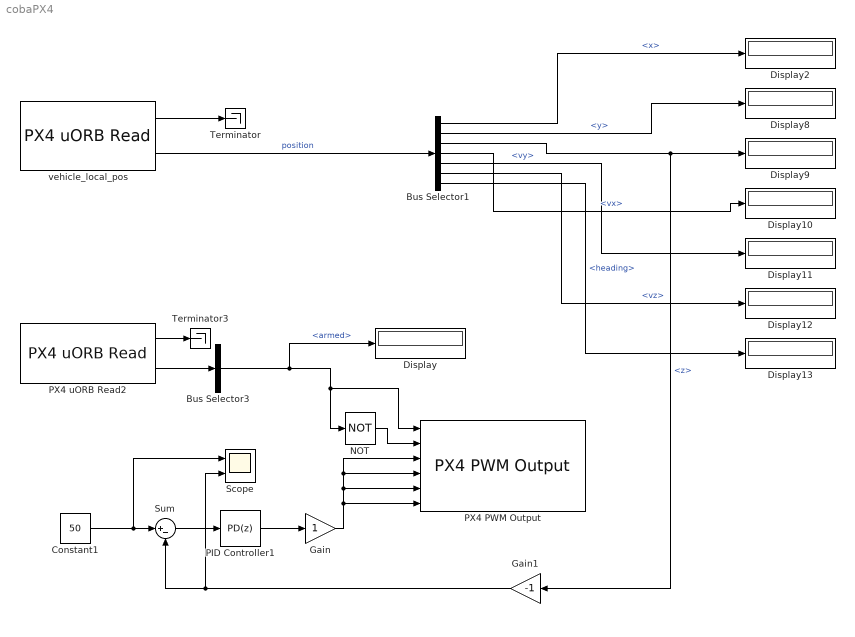
//
// Academic License - for use in teaching, academic research, and meeting
// course requirements at degree granting institutions only.  Not for
// government, commercial, or other organizational use.
//
// File: cobaPX4.cpp
//
// Code generated for Simulink model 'cobaPX4'.
//
// Model version                  : 1.16
// Simulink Coder version         : 9.9 (R2023a) 19-Nov-2022
// C/C++ source code generated on : Fri Mar  1 16:46:32 2024
//
// Target selection: ert.tlc
// Embedded hardware selection: ARM Compatible->ARM Cortex
// Code generation objectives: Unspecified
// Validation result: Not run
//
#include "cobaPX4.h"
#include "cobaPX4_types.h"
#include "rtwtypes.h"
#include <math.h>

extern "C"
{

#include "rt_nonfinite.h"

}

#include <uORB/topics/actuator_armed.h>
#include "cobaPX4_private.h"

// Block signals (default storage)
B_cobaPX4_T cobaPX4_B;

// Block states (default storage)
DW_cobaPX4_T cobaPX4_DW;

// Real-time model
RT_MODEL_cobaPX4_T cobaPX4_M_ = RT_MODEL_cobaPX4_T();
RT_MODEL_cobaPX4_T *const cobaPX4_M = &cobaPX4_M_;

// Forward declaration for local functions
static void cobaPX4_SystemCore_setup(px4_internal_block_PWM_cobaPX_T *obj,
  boolean_T varargin_1, boolean_T varargin_2);
static void cobaPX4_SystemCore_setup(px4_internal_block_PWM_cobaPX_T *obj,
  boolean_T varargin_1, boolean_T varargin_2)
{
  uint16_T status;
  obj->isSetupComplete = false;
  obj->isInitialized = 1;
  obj->isMain = true;
  obj->pwmDevObj = MW_PWM_OUTPUT_MAIN_DEVICE_PATH;
  status = pwm_open(&obj->pwmDevHandler, obj->pwmDevObj,
                    &obj->actuatorAdvertiseObj, &obj->armAdvertiseObj);
  obj->errorStatus = static_cast<uint16_T>(obj->errorStatus | status);
  obj->servoCount = 0;
  status = pwm_getServoCount(&obj->pwmDevHandler, &obj->servoCount);
  obj->errorStatus = static_cast<uint16_T>(obj->errorStatus | status);
  if (varargin_1) {
    status = pwm_arm(&obj->pwmDevHandler, &obj->armAdvertiseObj);
    obj->isArmed = true;
  } else {
    status = pwm_disarm(&obj->pwmDevHandler, &obj->armAdvertiseObj);
    obj->isArmed = false;
  }

  obj->errorStatus = static_cast<uint16_T>(obj->errorStatus | status);
  status = pwm_setPWMRate(&obj->pwmDevHandler, obj->isMain);
  obj->errorStatus = static_cast<uint16_T>(obj->errorStatus | status);
  obj->channelMask = 15;
  status = pwm_setChannelMask(&obj->pwmDevHandler, obj->channelMask);
  obj->errorStatus = static_cast<uint16_T>(obj->errorStatus | status);
  status = pwm_setFailsafePWM(&obj->pwmDevHandler, obj->servoCount,
    obj->channelMask, obj->isMain);
  obj->errorStatus = static_cast<uint16_T>(obj->errorStatus | status);
  status = pwm_setDisarmedPWM(&obj->pwmDevHandler, obj->servoCount,
    obj->channelMask, obj->isMain, &obj->actuatorAdvertiseObj);
  obj->errorStatus = static_cast<uint16_T>(obj->errorStatus | status);
  if (obj->isMain) {
    status = pwm_forceFailsafe(&obj->pwmDevHandler, static_cast<int32_T>
      (varargin_2));
    obj->errorStatus = static_cast<uint16_T>(obj->errorStatus | status);
    status = pwm_forceTerminateFailsafe(&obj->pwmDevHandler, 0);
    obj->errorStatus = static_cast<uint16_T>(obj->errorStatus | status);
  }

  obj->isSetupComplete = true;
}

// Model step function
void cobaPX4_step(void)
{
  px4_Bus_actuator_armed b_varargout_2;
  real_T rtb_Filter;
  real_T rtb_FilterCoefficient;
  int32_T i;
  uint16_T pwmValue[8];
  uint16_T rtb_Gain;
  boolean_T b_varargout_1;

  // Reset subsysRan breadcrumbs
  srClearBC(cobaPX4_DW.EnabledSubsystem_SubsysRanBC_p);

  // Reset subsysRan breadcrumbs
  srClearBC(cobaPX4_DW.EnabledSubsystem_SubsysRanBC);

  // MATLABSystem: '<S2>/SourceBlock'
  b_varargout_1 = uORB_read_step(cobaPX4_DW.obj_n.orbMetadataObj,
    &cobaPX4_DW.obj_n.eventStructObj, &b_varargout_2, false, 1.0);

  // Outputs for Enabled SubSystem: '<S2>/Enabled Subsystem' incorporates:
  //   EnablePort: '<S52>/Enable'

  if (b_varargout_1) {
    // SignalConversion generated from: '<S52>/In1'
    cobaPX4_B.In1_n = b_varargout_2;
    srUpdateBC(cobaPX4_DW.EnabledSubsystem_SubsysRanBC_p);
  }

  // End of MATLABSystem: '<S2>/SourceBlock'
  // End of Outputs for SubSystem: '<S2>/Enabled Subsystem'

  // SignalConversion generated from: '<Root>/Bus Selector3'
  cobaPX4_B.armed = cobaPX4_B.In1_n.armed;

  // Constant: '<Root>/Constant1'
  cobaPX4_B.Constant1 = cobaPX4_P.Constant1_Value;

  // MATLABSystem: '<S3>/SourceBlock'
  b_varargout_1 = uORB_read_step(cobaPX4_DW.obj_d.orbMetadataObj,
    &cobaPX4_DW.obj_d.eventStructObj, &cobaPX4_B.b_varargout_2, false, 1.0);

  // Outputs for Enabled SubSystem: '<S3>/Enabled Subsystem' incorporates:
  //   EnablePort: '<S53>/Enable'

  if (b_varargout_1) {
    // SignalConversion generated from: '<S53>/In1'
    cobaPX4_B.In1 = cobaPX4_B.b_varargout_2;
    srUpdateBC(cobaPX4_DW.EnabledSubsystem_SubsysRanBC);
  }

  // End of MATLABSystem: '<S3>/SourceBlock'
  // End of Outputs for SubSystem: '<S3>/Enabled Subsystem'

  // SignalConversion generated from: '<Root>/Bus Selector1'
  cobaPX4_B.z = cobaPX4_B.In1.z;

  // Gain: '<Root>/Gain1'
  cobaPX4_B.Gain1 = cobaPX4_P.Gain1_Gain * cobaPX4_B.z;

  // Sum: '<Root>/Sum'
  rtb_Filter = cobaPX4_B.Constant1 - cobaPX4_B.Gain1;

  // Gain: '<S38>/Filter Coefficient' incorporates:
  //   DiscreteIntegrator: '<S30>/Filter'
  //   Gain: '<S29>/Derivative Gain'
  //   Sum: '<S30>/SumD'

  rtb_FilterCoefficient = (cobaPX4_P.PIDController1_D * rtb_Filter -
    cobaPX4_DW.Filter_DSTATE) * cobaPX4_P.PIDController1_N;

  // Gain: '<Root>/Gain' incorporates:
  //   Gain: '<S40>/Proportional Gain'
  //   Sum: '<S44>/Sum'

  rtb_Filter = floor((cobaPX4_P.PIDController1_P * rtb_Filter +
                      rtb_FilterCoefficient) * cobaPX4_P.Gain_Gain);
  if (rtIsNaN(rtb_Filter) || rtIsInf(rtb_Filter)) {
    rtb_Filter = 0.0;
  } else {
    rtb_Filter = fmod(rtb_Filter, 65536.0);
  }

  rtb_Gain = static_cast<uint16_T>(rtb_Filter < 0.0 ? static_cast<int32_T>(
    static_cast<uint16_T>(-static_cast<int16_T>(static_cast<uint16_T>
    (-rtb_Filter)))) : static_cast<int32_T>(static_cast<uint16_T>(rtb_Filter)));

  // End of Gain: '<Root>/Gain'

  // MATLABSystem: '<Root>/PX4 PWM Output' incorporates:
  //   Logic: '<Root>/NOT'

  for (i = 0; i < 8; i++) {
    pwmValue[i] = 0U;
  }

  pwmValue[0] = rtb_Gain;
  pwmValue[1] = rtb_Gain;
  pwmValue[2] = rtb_Gain;
  pwmValue[3] = rtb_Gain;
  if (cobaPX4_B.armed) {
    if (!cobaPX4_DW.obj.isArmed) {
      cobaPX4_DW.obj.isArmed = true;
      rtb_Gain = pwm_arm(&cobaPX4_DW.obj.pwmDevHandler,
                         &cobaPX4_DW.obj.armAdvertiseObj);
      cobaPX4_DW.obj.errorStatus = static_cast<uint16_T>
        (cobaPX4_DW.obj.errorStatus | rtb_Gain);
    }

    rtb_Gain = pwm_setServo(&cobaPX4_DW.obj.pwmDevHandler,
      cobaPX4_DW.obj.servoCount, cobaPX4_DW.obj.channelMask, &pwmValue[0],
      cobaPX4_DW.obj.isMain, &cobaPX4_DW.obj.actuatorAdvertiseObj);
    cobaPX4_DW.obj.errorStatus = static_cast<uint16_T>
      (cobaPX4_DW.obj.errorStatus | rtb_Gain);
  } else {
    rtb_Gain = pwm_disarm(&cobaPX4_DW.obj.pwmDevHandler,
                          &cobaPX4_DW.obj.armAdvertiseObj);
    cobaPX4_DW.obj.errorStatus = static_cast<uint16_T>
      (cobaPX4_DW.obj.errorStatus | rtb_Gain);
    cobaPX4_DW.obj.isArmed = false;
    rtb_Gain = pwm_resetServo(&cobaPX4_DW.obj.pwmDevHandler,
      cobaPX4_DW.obj.servoCount, cobaPX4_DW.obj.channelMask,
      cobaPX4_DW.obj.isMain, &cobaPX4_DW.obj.actuatorAdvertiseObj);
    cobaPX4_DW.obj.errorStatus = static_cast<uint16_T>
      (cobaPX4_DW.obj.errorStatus | rtb_Gain);
  }

  if (cobaPX4_DW.obj.isMain) {
    rtb_Gain = pwm_forceFailsafe(&cobaPX4_DW.obj.pwmDevHandler, !cobaPX4_B.armed);
    cobaPX4_DW.obj.errorStatus = static_cast<uint16_T>
      (cobaPX4_DW.obj.errorStatus | rtb_Gain);
  }

  // End of MATLABSystem: '<Root>/PX4 PWM Output'
  // SignalConversion generated from: '<Root>/Bus Selector1'
  cobaPX4_B.vx = cobaPX4_B.In1.vx;

  // SignalConversion generated from: '<Root>/Bus Selector1'
  cobaPX4_B.vy = cobaPX4_B.In1.vy;

  // SignalConversion generated from: '<Root>/Bus Selector1'
  cobaPX4_B.vz = cobaPX4_B.In1.vz;

  // SignalConversion generated from: '<Root>/Bus Selector1'
  cobaPX4_B.heading = cobaPX4_B.In1.heading;

  // SignalConversion generated from: '<Root>/Bus Selector1'
  cobaPX4_B.x = cobaPX4_B.In1.x;

  // SignalConversion generated from: '<Root>/Bus Selector1'
  cobaPX4_B.y = cobaPX4_B.In1.y;

  // Update for DiscreteIntegrator: '<S30>/Filter'
  cobaPX4_DW.Filter_DSTATE += cobaPX4_P.Filter_gainval * rtb_FilterCoefficient;

  {                                    // Sample time: [0.2s, 0.0s]
  }

  // Update absolute time for base rate
  // The "clockTick0" counts the number of times the code of this task has
  //  been executed. The absolute time is the multiplication of "clockTick0"
  //  and "Timing.stepSize0". Size of "clockTick0" ensures timer will not
  //  overflow during the application lifespan selected.

  cobaPX4_M->Timing.taskTime0 =
    ((time_T)(++cobaPX4_M->Timing.clockTick0)) * cobaPX4_M->Timing.stepSize0;
}
